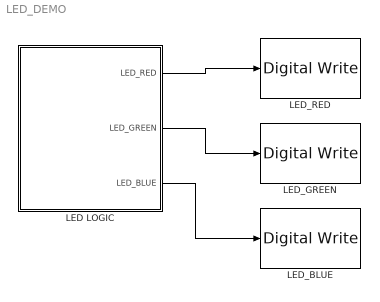
== stateflow chart LED_DEMO/LED LOGIC ==
  state LED_RED_STATE
    entry:
    LED_BLUE = false;
    LED_RED = true;
  state LED_GREEN_STATE
    entry:
    LED_RED = false;
    LED_GREEN = true;
  state LED_BLUE_STATE
    entry:
    LED_GREEN = false;
    LED_BLUE = true;
  (default) -> LED_RED_STATE
  LED_RED_STATE -> LED_GREEN_STATE : after(5,msec)
  LED_BLUE_STATE -> LED_RED_STATE : after(5,msec)
  LED_GREEN_STATE -> LED_BLUE_STATE : after(5,msec)
  data: LED_RED output boolean; LED_GREEN output boolean; LED_BLUE output boolean

/*
 * Academic License - for use in teaching, academic research, and meeting
 * course requirements at degree granting institutions only.  Not for
 * government, commercial, or other organizational use.
 *
 * File: LED_DEMO.c
 *
 * Code generated for Simulink model 'LED_DEMO'.
 *
 * Model version                  : 1.3
 * Simulink Coder version         : 9.5 (R2021a) 14-Nov-2020
 * C/C++ source code generated on : Mon Oct  4 09:12:56 2021
 *
 * Target selection: ert.tlc
 * Embedded hardware selection: ARM Compatible->ARM Cortex
 * Code generation objectives: Unspecified
 * Validation result: Not run
 */

#include "LED_DEMO.h"
#include "LED_DEMO_private.h"

/* Named constants for Chart: '<Root>/LED LOGIC' */
#define LED_DEMO_IN_LED_BLUE_STATE     ((uint8_T)1U)
#define LED_DEMO_IN_LED_GREEN_STATE    ((uint8_T)2U)
#define LED_DEMO_IN_LED_RED_STATE      ((uint8_T)3U)

/* Block signals (default storage) */
B_LED_DEMO_T LED_DEMO_B;

/* Block states (default storage) */
DW_LED_DEMO_T LED_DEMO_DW;

/* Real-time model */
static RT_MODEL_LED_DEMO_T LED_DEMO_M_;
RT_MODEL_LED_DEMO_T *const LED_DEMO_M = &LED_DEMO_M_;

/* Model step function */
void LED_DEMO_step(void)
{
  /* Chart: '<Root>/LED LOGIC' */
  if (LED_DEMO_DW.temporalCounter_i1 < 7U) {
    LED_DEMO_DW.temporalCounter_i1++;
  }

  if (LED_DEMO_DW.is_active_c3_LED_DEMO == 0U) {
    LED_DEMO_DW.is_active_c3_LED_DEMO = 1U;
    LED_DEMO_DW.is_c3_LED_DEMO = LED_DEMO_IN_LED_RED_STATE;
    LED_DEMO_DW.temporalCounter_i1 = 0U;
    LED_DEMO_B.LED_BLUE = false;
    LED_DEMO_B.LED_RED = true;
  } else {
    switch (LED_DEMO_DW.is_c3_LED_DEMO) {
     case LED_DEMO_IN_LED_BLUE_STATE:
      LED_DEMO_B.LED_GREEN = false;
      LED_DEMO_B.LED_BLUE = true;
      if (LED_DEMO_DW.temporalCounter_i1 >= 5U) {
        LED_DEMO_DW.is_c3_LED_DEMO = LED_DEMO_IN_LED_RED_STATE;
        LED_DEMO_DW.temporalCounter_i1 = 0U;
        LED_DEMO_B.LED_BLUE = false;
        LED_DEMO_B.LED_RED = true;
      }
      break;

     case LED_DEMO_IN_LED_GREEN_STATE:
      LED_DEMO_B.LED_RED = false;
      LED_DEMO_B.LED_GREEN = true;
      if (LED_DEMO_DW.temporalCounter_i1 >= 5U) {
        LED_DEMO_DW.is_c3_LED_DEMO = LED_DEMO_IN_LED_BLUE_STATE;
        LED_DEMO_DW.temporalCounter_i1 = 0U;
        LED_DEMO_B.LED_GREEN = false;
        LED_DEMO_B.LED_BLUE = true;
      }
      break;

     default:
      /* case IN_LED_RED_STATE: */
      LED_DEMO_B.LED_BLUE = false;
      LED_DEMO_B.LED_RED = true;
      if (LED_DEMO_DW.temporalCounter_i1 >= 5U) {
        LED_DEMO_DW.is_c3_LED_DEMO = LED_DEMO_IN_LED_GREEN_STATE;
        LED_DEMO_DW.temporalCounter_i1 = 0U;
        LED_DEMO_B.LED_RED = false;
        LED_DEMO_B.LED_GREEN = true;
      }
      break;
    }
  }

  /* End of Chart: '<Root>/LED LOGIC' */

  /* MATLABSystem: '<Root>/LED_BLUE' */
  MW_digitalIO_write(LED_DEMO_DW.obj_m.MW_DIGITALIO_HANDLE, LED_DEMO_B.LED_BLUE);

  /* MATLABSystem: '<Root>/LED_GREEN' */
  MW_digitalIO_write(LED_DEMO_DW.obj_j.MW_DIGITALIO_HANDLE, LED_DEMO_B.LED_GREEN);

  /* MATLABSystem: '<Root>/LED_RED' */
  MW_digitalIO_write(LED_DEMO_DW.obj.MW_DIGITALIO_HANDLE, LED_DEMO_B.LED_RED);
}
